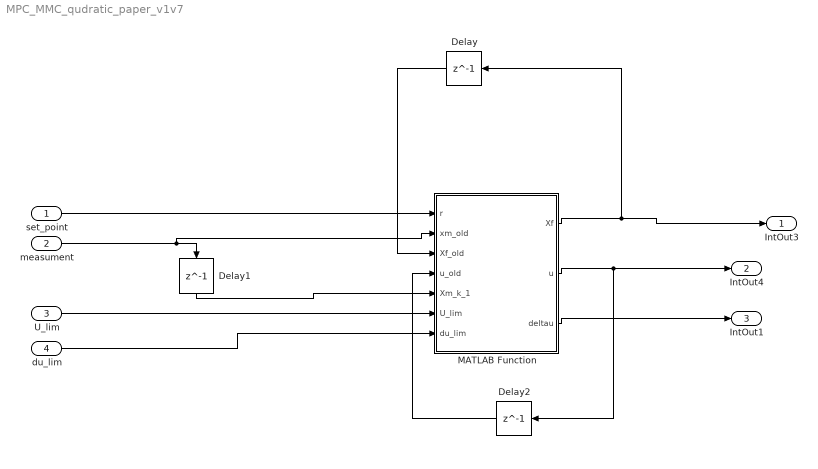
== matlab function MPC_MMC_qudratic_paper_v1v7/MATLAB Function ==
function [Xf,u,deltau] = fcn(r,xm_old,Xf_old,u_old,Xm_k_1,U_lim,du_lim)
D = []; 
D= coder.load('initial_qudratic_papervx.mat'); 
gamma=[(U_lim - u_old);(U_lim + u_old); du_lim; du_lim];
eta = QPhild(D.Omega,D.Psi*(D.Xf+Xf_old),D.M,gamma);
%eta= -(D.Omega\D.Psi)*(D.Xf+Xf_old);
deltau= D.Lzerot*eta;
u=D.up+u_old+deltau;
y = xm_old;
xm = xm_old;
y_delta_k=y-Xm_k_1;
Xf=[y_delta_k;y-r];
end

/*
 * Academic License - for use in teaching, academic research, and meeting
 * course requirements at degree granting institutions only.  Not for
 * government, commercial, or other organizational use.
 *
 * File: MPC_MMC_qudratic_paper_v1v7.c
 *
 * Code generated for Simulink model 'MPC_MMC_qudratic_paper_v1v7'.
 *
 * Model version                  : 1.32
 * Simulink Coder version         : 9.2 (R2019b) 18-Jul-2019
 * C/C++ source code generated on : Fri Jun 24 11:37:29 2022
 *
 * Target selection: ert.tlc
 * Embedded hardware selection: 32-bit Generic
 * Code generation objectives: Unspecified
 * Validation result: Not run
 */

#include "MPC_MMC_qudratic_paper_v1v7.h"
#include "MPC_MMC_qudratic_paper_v1v7_private.h"

/* Block states (default storage) */
D_Work_MPC_MMC_qudratic_paper_v MPC_MMC_qudratic_paper_v1_DWork;

/* External inputs (root inport signals with default storage) */
ExternalInputs_MPC_MMC_qudratic MPC_MMC_qudratic_paper_v1v7_U;

/* External outputs (root outports fed by signals with default storage) */
ExternalOutputs_MPC_MMC_qudrati MPC_MMC_qudratic_paper_v1v7_Y;

/* Real-time model */
RT_MODEL_MPC_MMC_qudratic_paper MPC_MMC_qudratic_paper_v1v7_M_;
RT_MODEL_MPC_MMC_qudratic_paper *const MPC_MMC_qudratic_paper_v1v7_M =
  &MPC_MMC_qudratic_paper_v1v7_M_;

/* Forward declaration for local functions */
static void MPC_MMC_qudratic_paper_v_xgetrf(real_T A[400], int32_T ipiv[20],
  int32_T *info);
static void MPC_MMC_qudratic_paper_mldivide(const real_T A[400], real_T B[20]);
static void MPC_MMC_qudratic_pap_mldivide_g(const real_T A[400], real_T B[400]);
static void MPC_MMC_qudratic_paper_v_QPhild(const real_T H[400], const real_T f
  [20], const real_T A_cons[400], const real_T b[20], real_T eta[20]);

/* Function for MATLAB Function: '<Root>/MATLAB Function' */
static void MPC_MMC_qudratic_paper_v_xgetrf(real_T A[400], int32_T ipiv[20],
  int32_T *info)
{
  int32_T j;
  int32_T c;
  int32_T ix;
  real_T smax;
  int32_T k;
  int32_T iy;
  real_T y;
  int32_T c_ix;
  int32_T d;
  int32_T ijA;
  for (j = 0; j < 20; j++) {
    ipiv[j] = j + 1;
  }

  *info = 0;
  for (j = 0; j < 19; j++) {
    c = j * 21;
    iy = 0;
    ix = c;
    smax = fabs(A[c]);
    for (k = 2; k <= 20 - j; k++) {
      ix++;
      y = fabs(A[ix]);
      if (y > smax) {
        iy = k - 1;
        smax = y;
      }
    }

    if (A[c + iy] != 0.0) {
      if (iy != 0) {
        iy += j;
        ipiv[j] = iy + 1;
        ix = j;
        for (k = 0; k < 20; k++) {
          smax = A[ix];
          A[ix] = A[iy];
          A[iy] = smax;
          ix += 20;
          iy += 20;
        }
      }

      iy = (c - j) + 20;
      for (ix = c + 1; ix < iy; ix++) {
        A[ix] /= A[c];
      }
    } else {
      *info = j + 1;
    }

    iy = c;
    ix = c + 20;
    for (k = 0; k <= 18 - j; k++) {
      if (A[ix] != 0.0) {
        smax = -A[ix];
        c_ix = c + 1;
        d = (iy - j) + 40;
        for (ijA = iy + 21; ijA < d; ijA++) {
          A[ijA] += A[c_ix] * smax;
          c_ix++;
        }
      }

      ix += 20;
      iy += 20;
    }
  }

  if ((*info == 0) && (!(A[399] != 0.0))) {
    *info = 20;
  }
}

/* Function for MATLAB Function: '<Root>/MATLAB Function' */
static void MPC_MMC_qudratic_paper_mldivide(const real_T A[400], real_T B[20])
{
  real_T temp;
  real_T b_A[400];
  int32_T ipiv[20];
  int32_T info;
  int32_T kAcol;
  int32_T i;
  memcpy(&b_A[0], &A[0], 400U * sizeof(real_T));
  MPC_MMC_qudratic_paper_v_xgetrf(b_A, ipiv, &info);
  for (info = 0; info < 19; info++) {
    if (info + 1 != ipiv[info]) {
      temp = B[info];
      B[info] = B[ipiv[info] - 1];
      B[ipiv[info] - 1] = temp;
    }
  }

  for (info = 0; info < 20; info++) {
    kAcol = 20 * info;
    if (B[info] != 0.0) {
      for (i = info + 1; i + 1 < 21; i++) {
        B[i] -= b_A[i + kAcol] * B[info];
      }
    }
  }

  for (info = 19; info >= 0; info--) {
    kAcol = 20 * info;
    if (B[info] != 0.0) {
      B[info] /= b_A[info + kAcol];
      for (i = 0; i < info; i++) {
        B[i] -= b_A[i + kAcol] * B[info];
      }
    }
  }
}

/* Function for MATLAB Function: '<Root>/MATLAB Function' */
static void MPC_MMC_qudratic_pap_mldivide_g(const real_T A[400], real_T B[400])
{
  real_T temp;
  int32_T ip;
  real_T b_A[400];
  int32_T ipiv[20];
  int32_T info;
  int32_T xj;
  int32_T kAcol;
  int32_T i;
  int32_T tmp;
  int32_T tmp_0;
  memcpy(&b_A[0], &A[0], 400U * sizeof(real_T));
  MPC_MMC_qudratic_paper_v_xgetrf(b_A, ipiv, &info);
  for (info = 0; info < 19; info++) {
    if (info + 1 != ipiv[info]) {
      ip = ipiv[info] - 1;
      for (xj = 0; xj < 20; xj++) {
        kAcol = 20 * xj + info;
        temp = B[kAcol];
        tmp = 20 * xj + ip;
        B[kAcol] = B[tmp];
        B[tmp] = temp;
      }
    }
  }

  for (info = 0; info < 20; info++) {
    ip = 20 * info;
    for (xj = 0; xj < 20; xj++) {
      kAcol = 20 * xj;
      tmp = xj + ip;
      if (B[tmp] != 0.0) {
        for (i = xj + 2; i < 21; i++) {
          tmp_0 = (i + ip) - 1;
          B[tmp_0] -= b_A[(i + kAcol) - 1] * B[tmp];
        }
      }
    }
  }

  for (info = 0; info < 20; info++) {
    ip = 20 * info;
    for (xj = 19; xj >= 0; xj--) {
      kAcol = 20 * xj;
      tmp = xj + ip;
      if (B[tmp] != 0.0) {
        B[tmp] /= b_A[xj + kAcol];
        for (i = 0; i < xj; i++) {
          tmp_0 = i + ip;
          B[tmp_0] -= B[tmp] * b_A[i + kAcol];
        }
      }
    }
  }
}

/* Function for MATLAB Function: '<Root>/MATLAB Function' */
static void MPC_MMC_qudratic_paper_v_QPhild(const real_T H[400], const real_T f
  [20], const real_T A_cons[400], const real_T b[20], real_T eta[20])
{
  real_T kk;
  real_T P[400];
  real_T d[20];
  real_T lambda[20];
  real_T lambda_p[20];
  int32_T i;
  real_T b_b[400];
  int32_T b_i;
  real_T H_0[400];
  real_T A_cons_0;
  real_T P_0;
  int32_T P_tmp;
  int32_T u1_tmp;
  boolean_T exitg1;
  memcpy(&eta[0], &f[0], 20U * sizeof(real_T));
  for (u1_tmp = 0; u1_tmp < 400; u1_tmp++) {
    H_0[u1_tmp] = -H[u1_tmp];
  }

  MPC_MMC_qudratic_paper_mldivide(H_0, eta);
  kk = 0.0;
  for (i = 0; i < 20; i++) {
    A_cons_0 = 0.0;
    for (u1_tmp = 0; u1_tmp < 20; u1_tmp++) {
      A_cons_0 += A_cons[20 * u1_tmp + i] * eta[u1_tmp];
    }

    if (A_cons_0 > b[i]) {
      kk++;
    }
  }

  if (!(kk == 0.0)) {
    for (u1_tmp = 0; u1_tmp < 20; u1_tmp++) {
      for (b_i = 0; b_i < 20; b_i++) {
        H_0[b_i + 20 * u1_tmp] = A_cons[20 * b_i + u1_tmp];
      }
    }

    memcpy(&b_b[0], &H_0[0], 400U * sizeof(real_T));
    MPC_MMC_qudratic_pap_mldivide_g(H, b_b);
    for (i = 0; i < 20; i++) {
      for (u1_tmp = 0; u1_tmp < 20; u1_tmp++) {
        P_tmp = i + 20 * u1_tmp;
        P[P_tmp] = 0.0;
        for (b_i = 0; b_i < 20; b_i++) {
          P[P_tmp] += A_cons[20 * b_i + i] * b_b[20 * u1_tmp + b_i];
        }
      }

      lambda_p[i] = f[i];
    }

    MPC_MMC_qudratic_paper_mldivide(H, lambda_p);
    for (i = 0; i < 20; i++) {
      kk = 0.0;
      for (u1_tmp = 0; u1_tmp < 20; u1_tmp++) {
        kk += A_cons[20 * u1_tmp + i] * lambda_p[u1_tmp];
      }

      d[i] = kk + b[i];
      lambda[i] = 0.0;
    }

    i = 0;
    exitg1 = false;
    while ((!exitg1) && (i < 38)) {
      kk = 0.0;
      for (b_i = 0; b_i < 20; b_i++) {
        A_cons_0 = lambda[b_i];
        P_0 = 0.0;
        for (u1_tmp = 0; u1_tmp < 20; u1_tmp++) {
          P_0 += P[20 * u1_tmp + b_i] * lambda[u1_tmp];
        }

        u1_tmp = 20 * b_i + b_i;
        P_0 = -((P_0 - P[u1_tmp] * lambda[b_i]) + d[b_i]) / P[u1_tmp];
        if ((0.0 > P_0) || rtIsNaN(P_0)) {
          lambda[b_i] = 0.0;
        } else {
          lambda[b_i] = P_0;
        }

        A_cons_0 = lambda[b_i] - A_cons_0;
        kk += A_cons_0 * A_cons_0;
      }

      if (kk < 1.0E-7) {
        exitg1 = true;
      } else {
        i++;
      }
    }

    memcpy(&b_b[0], &H_0[0], 400U * sizeof(real_T));
    MPC_MMC_qudratic_pap_mldivide_g(H, b_b);
    memcpy(&lambda_p[0], &f[0], 20U * sizeof(real_T));
    for (u1_tmp = 0; u1_tmp < 400; u1_tmp++) {
      H_0[u1_tmp] = -H[u1_tmp];
    }

    MPC_MMC_qudratic_paper_mldivide(H_0, lambda_p);
    for (u1_tmp = 0; u1_tmp < 20; u1_tmp++) {
      kk = 0.0;
      for (b_i = 0; b_i < 20; b_i++) {
        kk += b_b[20 * b_i + u1_tmp] * lambda[b_i];
      }

      eta[u1_tmp] = lambda_p[u1_tmp] - kk;
    }
  }
}

/* Model step function */
void MPC_MMC_qudratic_paper_v1v7_step(void)
{
  real_T eta[20];
  real_T rtb_Xf[10];
  real_T rtb_deltau[5];
  real_T rtb_Delay2[5];
  int32_T i;
  real_T b_a[20];
  real_T tmp[20];
  int32_T i_0;
  static const real_T b_a_0[200] = { -0.22547211838937034, -0.14121965258946534,
    -0.07029550043666663, -0.020689785982641606, 3.0298227549118312E-5,
    5.8187221206890672E-5, 5.01349033829784E-5, 2.4223674702204298E-5, 0.0, 0.0,
    0.0, 0.0, 0.0, 0.0, 0.0, 0.0, 0.0, 0.0, 0.0, 0.0, -3.0298227549118227E-5,
    -5.8187221206890604E-5, -5.0134903382978373E-5, -2.4223674702204308E-5,
    -0.22547211838937048, -0.14121965258946539, -0.070295500436666644,
    -0.020689785982641602, 0.0, 0.0, 0.0, 0.0, 0.0, 0.0, 0.0, 0.0, 0.0, 0.0, 0.0,
    0.0, 0.0, 0.0, 0.0, 0.0, 0.0, 0.0, 0.0, 0.0, -0.22547217572047895,
    -0.14121969092144826, -0.0702955280504913, -0.020689800932858486, 0.0, 0.0,
    0.0, 0.0, 0.0, 0.0, 0.0, 0.0, 0.0, 0.0, 0.0, 0.0, 0.0, 0.0, 0.0, 0.0, 0.0,
    0.0, 0.0, 0.0, 0.41191923565449268, 0.25799689830903522, 0.1284242426319189,
    0.037798600528619934, 2.7676186976570054E-5, 5.3151636853359056E-5,
    4.5796185865082839E-5, 2.2127344156813792E-5, 0.0, 0.0, 0.0, 0.0, 0.0, 0.0,
    0.0, 0.0, 0.0, 0.0, 0.0, 0.0, -2.7676186976570237E-5, -5.3151636853359131E-5,
    -4.579618586508288E-5, -2.2127344156813792E-5, 0.41191923565449245,
    0.25799689830903505, 0.12842424263191882, 0.03779860052861992,
    -0.010694355841797509, -0.0060145645680077979, -0.0026902678864824804,
    -0.000677397377215728, -8.0564622991428762E-6, -3.3779646235599068E-6,
    -9.406115505800108E-7, 2.334720503358968E-9, 0.0, 0.0, 0.0, 0.0, 0.0, 0.0,
    0.0, 0.0, 0.0, 0.0, 0.0, 0.0, 8.0564622991428746E-6, 3.3779646235599072E-6,
    9.4061155058001048E-7, -2.334720503359246E-9, -0.010694355841797513,
    -0.0060145645680077979, -0.0026902678864824813, -0.00067739737721572788, 0.0,
    0.0, 0.0, 0.0, 0.0, 0.0, 0.0, 0.0, 0.0, 0.0, 0.0, 0.0, 0.0, 0.0, 0.0, 0.0,
    0.0, 0.0, 0.0, 0.0, -0.010694360016272081, -0.0060145657251854728,
    -0.002690267965406844, -0.000677397272711929, 0.0, 0.0, 0.0, 0.0, 0.0, 0.0,
    0.0, 0.0, 0.0, 0.0, 0.0, 0.0, 0.0, 0.0, 0.0, 0.0, 0.0, 0.0, 0.0, 0.0,
    0.019537750557552927, 0.010988139818870236, 0.00491491025975853,
    0.0012375527997055729, -7.3592577592370106E-6, -3.0856373720027132E-6,
    -8.5921197614507112E-7, 2.1324977968086896E-9, 0.0, 0.0, 0.0, 0.0, 0.0, 0.0,
    0.0, 0.0, 0.0, 0.0, 0.0, 0.0, 7.3592577592370089E-6, 3.0856373720027124E-6,
    8.5921197614506974E-7, -2.1324977968090668E-9, 0.019537750557552927,
    0.010988139818870236, 0.0049149102597585322, 0.0012375527997055737 };

  static const real_T b[400] = { 0.20000540180479043, 3.430422508163483E-6,
    1.7329376911227334E-6, 5.19601525199873E-7, 2.6789220933330766E-25,
    -9.4225561655593027E-10, -9.896389216361753E-10, -5.2895221367836428E-10,
    0.0, 0.0, 0.0, 0.0, 0.0, 0.0, 0.0, 0.0, 0.0, 0.0, 0.0, 0.0,
    3.430422508163483E-6, 0.20000227316646832, 1.2079902217576319E-6,
    3.8724936882171303E-7, 9.4225561655593027E-10, -3.8298829891939292E-25,
    -3.4991123721471468E-10, -2.7472202623824562E-10, 0.0, 0.0, 0.0, 0.0, 0.0,
    0.0, 0.0, 0.0, 0.0, 0.0, 0.0, 0.0, 1.7329376911227334E-6,
    1.2079902217576319E-6, 0.20000069445870156, 2.5207864281639848E-7,
    9.89638921636176E-10, 3.4991123721471447E-10, 4.2113494467061052E-26,
    -9.6847957007169856E-11, 0.0, 0.0, 0.0, 0.0, 0.0, 0.0, 0.0, 0.0, 0.0, 0.0,
    0.0, 0.0, 5.19601525199873E-7, 3.8724936882171303E-7, 2.5207864281639848E-7,
    0.20000011565176209, 5.289522136783648E-10, 2.7472202623824573E-10,
    9.684795700717E-11, 2.4615606934045187E-26, 0.0, 0.0, 0.0, 0.0, 0.0, 0.0,
    0.0, 0.0, 0.0, 0.0, 0.0, 0.0, 2.6789220933330766E-25, 9.4225561655593027E-10,
    9.89638921636176E-10, 5.289522136783648E-10, 0.20000540180479043,
    3.4304225081634843E-6, 1.7329376911227342E-6, 5.1960152519987309E-7, 0.0,
    0.0, 0.0, 0.0, 0.0, 0.0, 0.0, 0.0, 0.0, 0.0, 0.0, 0.0,
    -9.4225561655593027E-10, -3.8298829891939292E-25, 3.4991123721471447E-10,
    2.7472202623824573E-10, 3.4304225081634843E-6, 0.20000227316646832,
    1.2079902217576321E-6, 3.8724936882171292E-7, 0.0, 0.0, 0.0, 0.0, 0.0, 0.0,
    0.0, 0.0, 0.0, 0.0, 0.0, 0.0, -9.896389216361753E-10,
    -3.4991123721471468E-10, 4.2113494467061052E-26, 9.684795700717E-11,
    1.7329376911227342E-6, 1.2079902217576321E-6, 0.20000069445870156,
    2.5207864281639843E-7, 0.0, 0.0, 0.0, 0.0, 0.0, 0.0, 0.0, 0.0, 0.0, 0.0, 0.0,
    0.0, -5.2895221367836428E-10, -2.7472202623824562E-10,
    -9.6847957007169856E-11, 2.4615606934045187E-26, 5.1960152519987309E-7,
    3.8724936882171292E-7, 2.5207864281639843E-7, 0.20000011565176209, 0.0, 0.0,
    0.0, 0.0, 0.0, 0.0, 0.0, 0.0, 0.0, 0.0, 0.0, 0.0, 0.0, 0.0, 0.0, 0.0, 0.0,
    0.0, 0.0, 0.0, 0.2000054018058261, 3.4304230800482132E-6,
    1.7329381082057288E-6, 5.196017817193968E-7, 0.0, 0.0, 0.0, 0.0, 0.0, 0.0,
    0.0, 0.0, 0.0, 0.0, 0.0, 0.0, 0.0, 0.0, 0.0, 0.0, 3.4304230800482132E-6,
    0.20000227316659655, 1.2079902688933508E-6, 3.8724942586726995E-7, 0.0, 0.0,
    0.0, 0.0, 0.0, 0.0, 0.0, 0.0, 0.0, 0.0, 0.0, 0.0, 0.0, 0.0, 0.0, 0.0,
    1.7329381082057288E-6, 1.2079902688933508E-6, 0.20000069445865432,
    2.5207862111481361E-7, 0.0, 0.0, 0.0, 0.0, 0.0, 0.0, 0.0, 0.0, 0.0, 0.0, 0.0,
    0.0, 0.0, 0.0, 0.0, 0.0, 5.196017817193968E-7, 3.8724942586726995E-7,
    2.5207862111481361E-7, 0.20000011565173639, 0.0, 0.0, 0.0, 0.0, 0.0, 0.0,
    0.0, 0.0, 0.0, 0.0, 0.0, 0.0, 0.0, 0.0, 0.0, 0.0, 0.0, 0.0, 0.0, 0.0,
    0.20001802928220469, 1.1449519927229005E-5, 5.7839262058216761E-6,
    1.7342449100163824E-6, -3.1623060092336368E-24, 1.5724543027311637E-9,
    1.6515289748850176E-9, 8.8272620199961E-10, 0.0, 0.0, 0.0, 0.0, 0.0, 0.0,
    0.0, 0.0, 0.0, 0.0, 0.0, 0.0, 1.1449519927229005E-5, 0.200007587016198,
    4.0318401883770649E-6, 1.2925007041783891E-6, -1.5724543027311666E-9,
    -6.5464913059190534E-25, 5.83938990320685E-10, 4.5846185369759573E-10, 0.0,
    0.0, 0.0, 0.0, 0.0, 0.0, 0.0, 0.0, 0.0, 0.0, 0.0, 0.0, 5.7839262058216761E-6,
    4.0318401883770649E-6, 0.20000231785587877, 8.4134905358666821E-7,
    -1.6515289748850195E-9, -5.8393899032068624E-10, -5.7347982059571686E-25,
    1.6162194475109684E-10, 0.0, 0.0, 0.0, 0.0, 0.0, 0.0, 0.0, 0.0, 0.0, 0.0,
    0.0, 0.0, 1.7342449100163824E-6, 1.2925007041783891E-6,
    8.4134905358666821E-7, 0.20000038600464576, -8.8272620199961022E-10,
    -4.5846185369759594E-10, -1.6162194475109718E-10, -8.0076673167039692E-26,
    0.0, 0.0, 0.0, 0.0, 0.0, 0.0, 0.0, 0.0, 0.0, 0.0, 0.0, 0.0,
    -3.1623060092336368E-24, -1.5724543027311666E-9, -1.6515289748850195E-9,
    -8.8272620199961022E-10, 0.20001802928220469, 1.1449519927229003E-5,
    5.7839262058216769E-6, 1.734244910016383E-6, 0.0, 0.0, 0.0, 0.0, 0.0, 0.0,
    0.0, 0.0, 0.0, 0.0, 0.0, 0.0, 1.5724543027311637E-9, -6.5464913059190534E-25,
    -5.8393899032068624E-10, -4.5846185369759594E-10, 1.1449519927229003E-5,
    0.200007587016198, 4.0318401883770649E-6, 1.2925007041783897E-6, 0.0, 0.0,
    0.0, 0.0, 0.0, 0.0, 0.0, 0.0, 0.0, 0.0, 0.0, 0.0, 1.6515289748850176E-9,
    5.83938990320685E-10, -5.7347982059571686E-25, -1.6162194475109718E-10,
    5.7839262058216769E-6, 4.0318401883770649E-6, 0.20000231785587877,
    8.4134905358666842E-7, 0.0, 0.0, 0.0, 0.0, 0.0, 0.0, 0.0, 0.0, 0.0, 0.0, 0.0,
    0.0, 8.8272620199961E-10, 4.5846185369759573E-10, 1.6162194475109684E-10,
    -8.0076673167039692E-26, 1.734244910016383E-6, 1.2925007041783897E-6,
    8.4134905358666842E-7, 0.20000038600464576 };

  static const real_T c[400] = { 0.66143782776614768, 0.0, 0.0, 0.0, 0.0,
    -0.66143782776614768, -0.0, -0.0, -0.0, -0.0, 0.66143782776614768, 0.0, 0.0,
    0.0, 0.0, -0.66143782776614768, -0.0, -0.0, -0.0, -0.0, -0.49607837082461076,
    0.0, 0.0, 0.0, 0.0, 0.49607837082461076, -0.0, -0.0, -0.0, -0.0,
    -0.49607837082461076, 0.0, 0.0, 0.0, 0.0, 0.49607837082461076, -0.0, -0.0,
    -0.0, -0.0, 0.37205877811845806, 0.0, 0.0, 0.0, 0.0, -0.37205877811845806,
    -0.0, -0.0, -0.0, -0.0, 0.37205877811845806, 0.0, 0.0, 0.0, 0.0,
    -0.37205877811845806, -0.0, -0.0, -0.0, -0.0, -0.27904408358884353, 0.0, 0.0,
    0.0, 0.0, 0.27904408358884353, -0.0, -0.0, -0.0, -0.0, -0.27904408358884353,
    0.0, 0.0, 0.0, 0.0, 0.27904408358884353, -0.0, -0.0, -0.0, -0.0, 0.0,
    0.66143782776614768, 0.0, 0.0, 0.0, -0.0, -0.66143782776614768, -0.0, -0.0,
    -0.0, 0.0, 0.66143782776614768, 0.0, 0.0, 0.0, -0.0, -0.66143782776614768,
    -0.0, -0.0, -0.0, 0.0, -0.49607837082461076, 0.0, 0.0, 0.0, -0.0,
    0.49607837082461076, -0.0, -0.0, -0.0, 0.0, -0.49607837082461076, 0.0, 0.0,
    0.0, -0.0, 0.49607837082461076, -0.0, -0.0, -0.0, 0.0, 0.37205877811845806,
    0.0, 0.0, 0.0, -0.0, -0.37205877811845806, -0.0, -0.0, -0.0, 0.0,
    0.37205877811845806, 0.0, 0.0, 0.0, -0.0, -0.37205877811845806, -0.0, -0.0,
    -0.0, 0.0, -0.27904408358884353, 0.0, 0.0, 0.0, -0.0, 0.27904408358884353,
    -0.0, -0.0, -0.0, 0.0, -0.27904408358884353, 0.0, 0.0, 0.0, -0.0,
    0.27904408358884353, -0.0, -0.0, -0.0, 0.0, 0.0, 0.66143782776614768, 0.0,
    0.0, -0.0, -0.0, -0.66143782776614768, -0.0, -0.0, 0.0, 0.0,
    0.66143782776614768, 0.0, 0.0, -0.0, -0.0, -0.66143782776614768, -0.0, -0.0,
    0.0, 0.0, -0.49607837082461076, 0.0, 0.0, -0.0, -0.0, 0.49607837082461076,
    -0.0, -0.0, 0.0, 0.0, -0.49607837082461076, 0.0, 0.0, -0.0, -0.0,
    0.49607837082461076, -0.0, -0.0, 0.0, 0.0, 0.37205877811845806, 0.0, 0.0,
    -0.0, -0.0, -0.37205877811845806, -0.0, -0.0, 0.0, 0.0, 0.37205877811845806,
    0.0, 0.0, -0.0, -0.0, -0.37205877811845806, -0.0, -0.0, 0.0, 0.0,
    -0.27904408358884353, 0.0, 0.0, -0.0, -0.0, 0.27904408358884353, -0.0, -0.0,
    0.0, 0.0, -0.27904408358884353, 0.0, 0.0, -0.0, -0.0, 0.27904408358884353,
    -0.0, -0.0, 0.0, 0.0, 0.0, 0.66143782776614768, 0.0, -0.0, -0.0, -0.0,
    -0.66143782776614768, -0.0, 0.0, 0.0, 0.0, 0.66143782776614768, 0.0, -0.0,
    -0.0, -0.0, -0.66143782776614768, -0.0, 0.0, 0.0, 0.0, -0.49607837082461076,
    0.0, -0.0, -0.0, -0.0, 0.49607837082461076, -0.0, 0.0, 0.0, 0.0,
    -0.49607837082461076, 0.0, -0.0, -0.0, -0.0, 0.49607837082461076, -0.0, 0.0,
    0.0, 0.0, 0.37205877811845806, 0.0, -0.0, -0.0, -0.0, -0.37205877811845806,
    -0.0, 0.0, 0.0, 0.0, 0.37205877811845806, 0.0, -0.0, -0.0, -0.0,
    -0.37205877811845806, -0.0, 0.0, 0.0, 0.0, -0.27904408358884353, 0.0, -0.0,
    -0.0, -0.0, 0.27904408358884353, -0.0, 0.0, 0.0, 0.0, -0.27904408358884353,
    0.0, -0.0, -0.0, -0.0, 0.27904408358884353, -0.0, 0.0, 0.0, 0.0, 0.0,
    0.66143782776614768, -0.0, -0.0, -0.0, -0.0, -0.66143782776614768, 0.0, 0.0,
    0.0, 0.0, 0.66143782776614768, -0.0, -0.0, -0.0, -0.0, -0.66143782776614768,
    0.0, 0.0, 0.0, 0.0, -0.49607837082461076, -0.0, -0.0, -0.0, -0.0,
    0.49607837082461076, 0.0, 0.0, 0.0, 0.0, -0.49607837082461076, -0.0, -0.0,
    -0.0, -0.0, 0.49607837082461076, 0.0, 0.0, 0.0, 0.0, 0.37205877811845806,
    -0.0, -0.0, -0.0, -0.0, -0.37205877811845806, 0.0, 0.0, 0.0, 0.0,
    0.37205877811845806, -0.0, -0.0, -0.0, -0.0, -0.37205877811845806, 0.0, 0.0,
    0.0, 0.0, -0.27904408358884353, -0.0, -0.0, -0.0, -0.0, 0.27904408358884353,
    0.0, 0.0, 0.0, 0.0, -0.27904408358884353, -0.0, -0.0, -0.0, -0.0,
    0.27904408358884353 };

  static const real_T a[100] = { 0.66143782776614768, 0.0, 0.0, 0.0, 0.0,
    -0.49607837082461076, 0.0, 0.0, 0.0, 0.0, 0.37205877811845806, 0.0, 0.0, 0.0,
    0.0, -0.27904408358884353, 0.0, 0.0, 0.0, 0.0, 0.0, 0.66143782776614768, 0.0,
    0.0, 0.0, 0.0, -0.49607837082461076, 0.0, 0.0, 0.0, 0.0, 0.37205877811845806,
    0.0, 0.0, 0.0, 0.0, -0.27904408358884353, 0.0, 0.0, 0.0, 0.0, 0.0,
    0.66143782776614768, 0.0, 0.0, 0.0, 0.0, -0.49607837082461076, 0.0, 0.0, 0.0,
    0.0, 0.37205877811845806, 0.0, 0.0, 0.0, 0.0, -0.27904408358884353, 0.0, 0.0,
    0.0, 0.0, 0.0, 0.66143782776614768, 0.0, 0.0, 0.0, 0.0, -0.49607837082461076,
    0.0, 0.0, 0.0, 0.0, 0.37205877811845806, 0.0, 0.0, 0.0, 0.0,
    -0.27904408358884353, 0.0, 0.0, 0.0, 0.0, 0.0, 0.66143782776614768, 0.0, 0.0,
    0.0, 0.0, -0.49607837082461076, 0.0, 0.0, 0.0, 0.0, 0.37205877811845806, 0.0,
    0.0, 0.0, 0.0, -0.27904408358884353 };

  real_T *tmp_0;

  /* Delay: '<Root>/Delay2' */
  for (i = 0; i < 5; i++) {
    rtb_Delay2[i] = MPC_MMC_qudratic_paper_v1_DWork.Delay2_DSTATE[i];
  }

  /* End of Delay: '<Root>/Delay2' */

  /* MATLAB Function: '<Root>/MATLAB Function' incorporates:
   *  Delay: '<Root>/Delay'
   *  Delay: '<Root>/Delay1'
   *  Inport: '<Root>/U_lim'
   *  Inport: '<Root>/du_lim'
   *  Inport: '<Root>/measument'
   *  Inport: '<Root>/set_point'
   */
  /* MATLAB Function 'MATLAB Function': '<S1>:1' */
  /* '<S1>:1:5' */
  /* '<S1>:1:7' */
  /* '<S1>:1:3' */
  /* '<S1>:1:4' */
  tmp_0 = &MPC_MMC_qudratic_paper_v1_DWork.Delay_DSTATE[0];
  for (i_0 = 0; i_0 < 20; i_0++) {
    b_a[i_0] = 0.0;
    for (i = 0; i < 10; i++) {
      b_a[i_0] += b_a_0[20 * i + i_0] * tmp_0[i];
    }
  }

  for (i_0 = 0; i_0 < 5; i_0++) {
    tmp[i_0] = MPC_MMC_qudratic_paper_v1v7_U.U_lim[i_0] - rtb_Delay2[i_0];
    tmp[i_0 + 5] = MPC_MMC_qudratic_paper_v1v7_U.U_lim[i_0] + rtb_Delay2[i_0];
    tmp[i_0 + 10] = MPC_MMC_qudratic_paper_v1v7_U.du_lim[i_0];
    tmp[i_0 + 15] = MPC_MMC_qudratic_paper_v1v7_U.du_lim[i_0];
  }

  MPC_MMC_qudratic_paper_v_QPhild(b, b_a, c, tmp, eta);

  /* '<S1>:1:7' */
  /* '<S1>:1:8' */
  /* '<S1>:1:11' */
  /* '<S1>:1:12' */
  for (i = 0; i < 5; i++) {
    rtb_deltau[i] = 0.0;
    for (i_0 = 0; i_0 < 20; i_0++) {
      rtb_deltau[i] += a[5 * i_0 + i] * eta[i_0];
    }

    rtb_Xf[i] = MPC_MMC_qudratic_paper_v1v7_U.measument[i] -
      MPC_MMC_qudratic_paper_v1_DWork.Delay1_DSTATE[i];
    rtb_Xf[i + 5] = MPC_MMC_qudratic_paper_v1v7_U.measument[i] -
      MPC_MMC_qudratic_paper_v1v7_U.set_point[i];
    rtb_Delay2[i] += rtb_deltau[i];
  }

  /* End of MATLAB Function: '<Root>/MATLAB Function' */

  /* Outport: '<Root>/IntOut3' */
  memcpy(&MPC_MMC_qudratic_paper_v1v7_Y.Xf[0], &rtb_Xf[0], 10U * sizeof(real_T));
  for (i = 0; i < 5; i++) {
    /* Outport: '<Root>/IntOut4' */
    MPC_MMC_qudratic_paper_v1v7_Y.u[i] = rtb_Delay2[i];

    /* Outport: '<Root>/IntOut1' */
    MPC_MMC_qudratic_paper_v1v7_Y.delta_u[i] = rtb_deltau[i];
  }

  /* Update for Delay: '<Root>/Delay' */
  memcpy(&MPC_MMC_qudratic_paper_v1_DWork.Delay_DSTATE[0], &rtb_Xf[0], 10U *
         sizeof(real_T));
  for (i = 0; i < 5; i++) {
    /* Update for Delay: '<Root>/Delay2' */
    MPC_MMC_qudratic_paper_v1_DWork.Delay2_DSTATE[i] = rtb_Delay2[i];

    /* Update for Delay: '<Root>/Delay1' incorporates:
     *  Inport: '<Root>/measument'
     */
    MPC_MMC_qudratic_paper_v1_DWork.Delay1_DSTATE[i] =
      MPC_MMC_qudratic_paper_v1v7_U.measument[i];
  }
}
